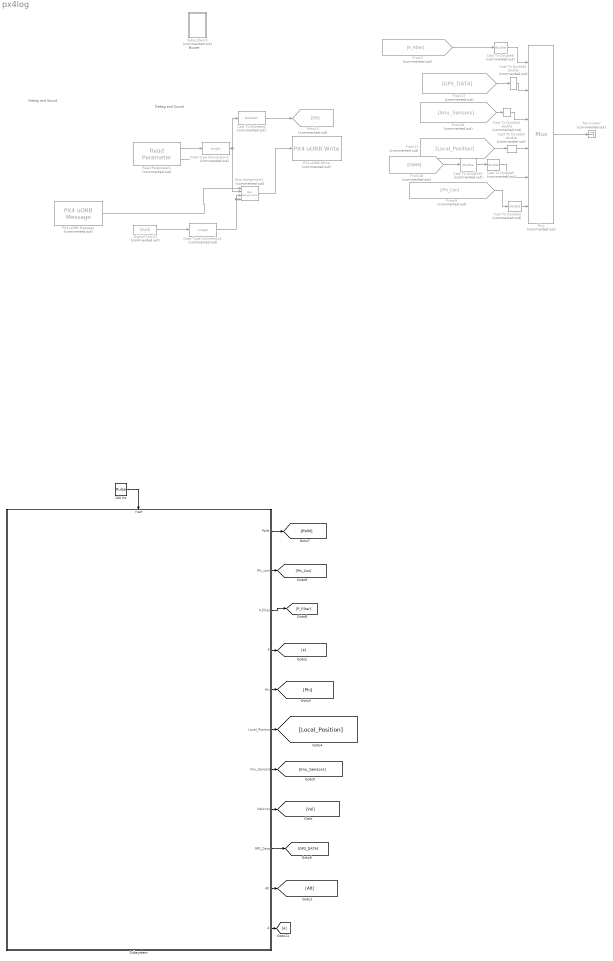
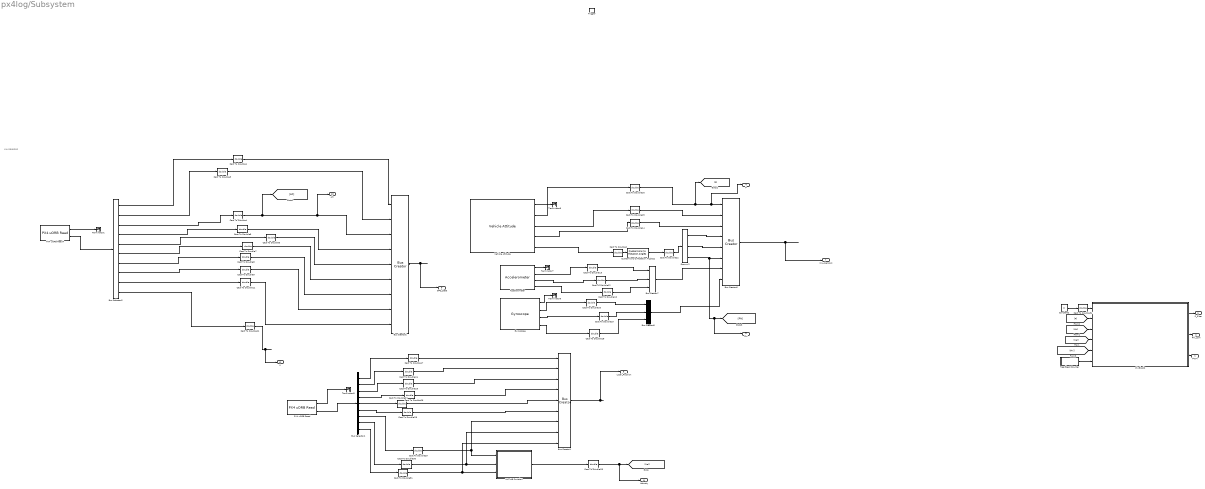
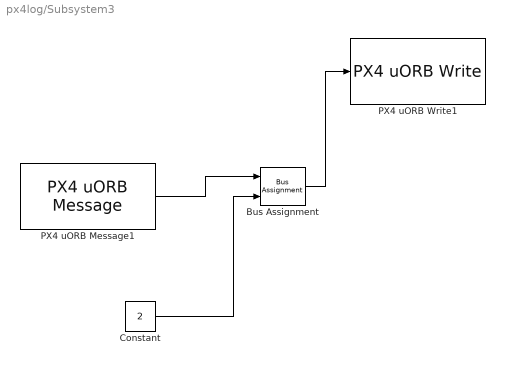
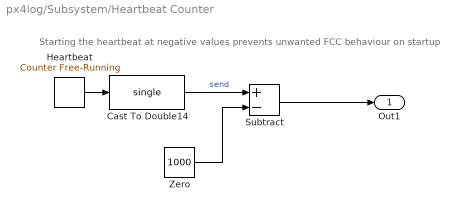
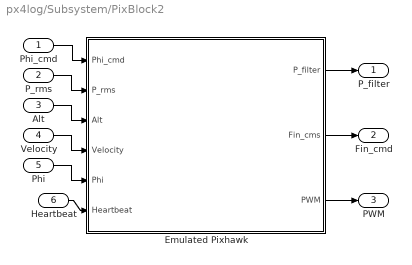
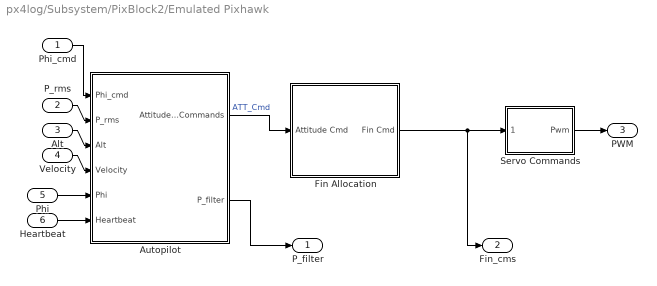
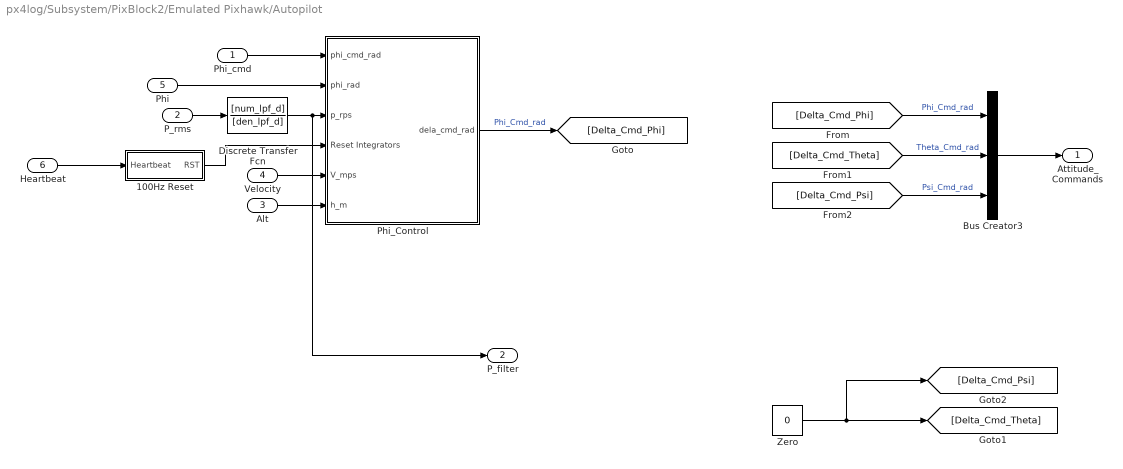
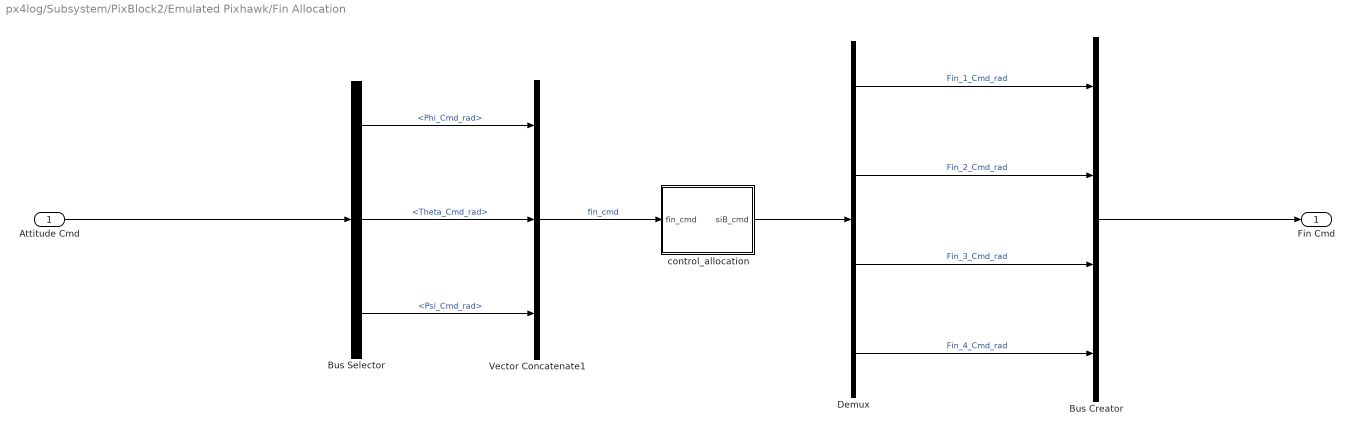
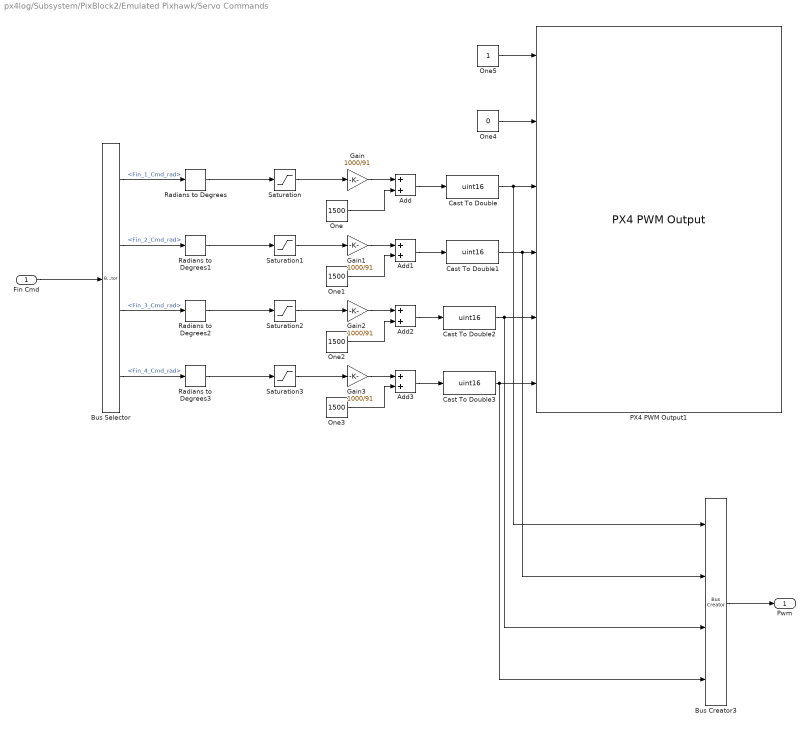
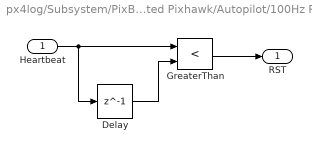
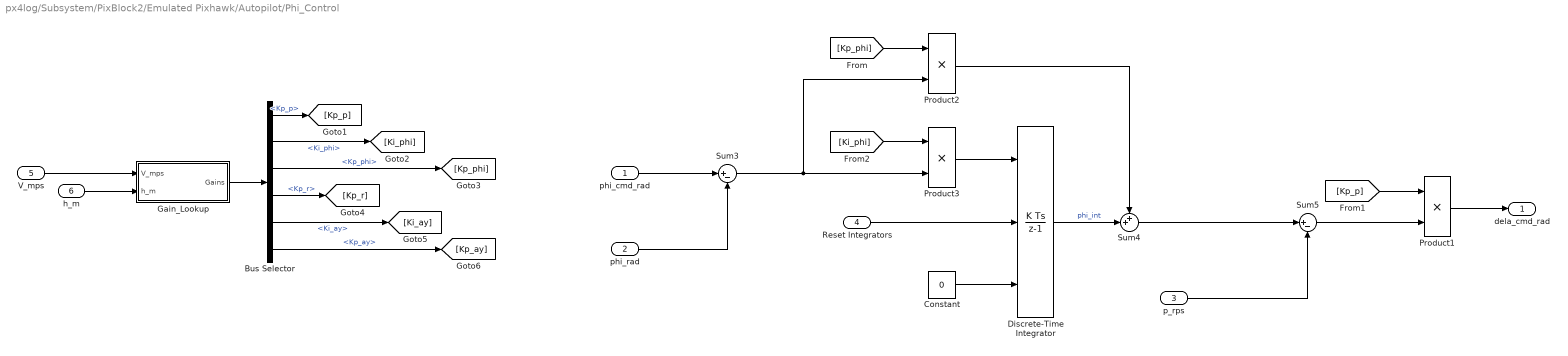
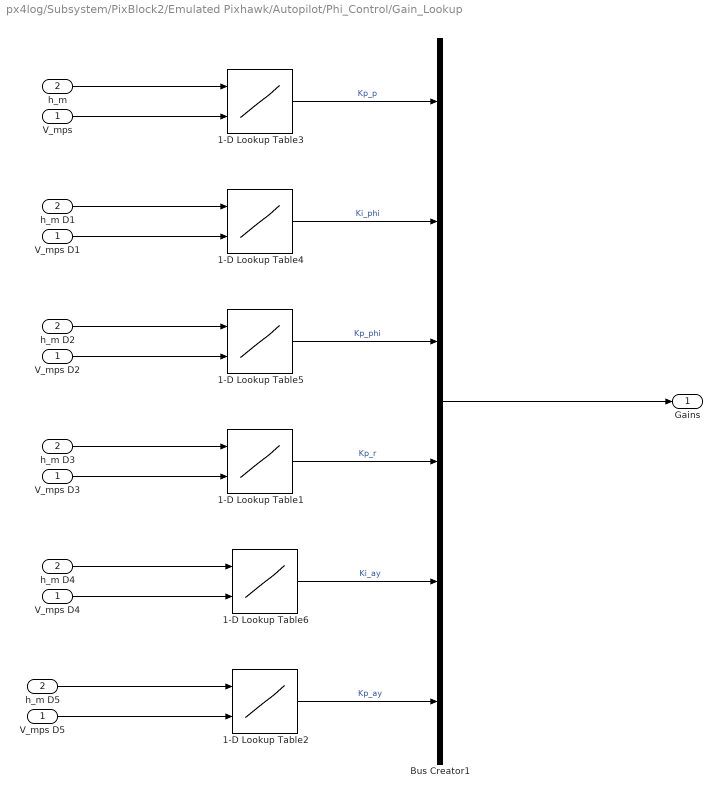
== system px4log/Subsystem/PixBlock2/Emulated Pixhawk/Fin Allocation/control_allocation ==
  fin_cmd : Inport
  Constant7 : Constant  Value=HIL_Data.FDM.Tr4r3  OutDataTypeStr=single
  Product : Product  Multiplication=Matrix(*)
  siB_cmd : Outport  VectorParamsAs1DForOutWhenUnconnected=off
  wires:
  Constant7/1 -> Product/1
  fin_cmd/1 -> Product/2
  Product/1 -> siB_cmd/1  "siB_cmd"

== matlab function px4log/Subsystem/MATLAB Function ==
function y = fcn(vx,vy,vz)

y = double(norm([vx vy vz]));
end

//
// Academic License - for use in teaching, academic research, and meeting
// course requirements at degree granting institutions only.  Not for
// government, commercial, or other organizational use.
//
// File: px4log.cpp
//
// Code generated for Simulink model 'px4log'.
//
// Model version                  : 1.155
// Simulink Coder version         : 9.5 (R2021a) 14-Nov-2020
// C/C++ source code generated on : Sat May  8 14:47:16 2021
//
// Target selection: ert.tlc
// Embedded hardware selection: ARM Compatible->ARM Cortex
// Code generation objectives: Unspecified
// Validation result: Not run
//
#include "px4log.h"
#include "px4log_private.h"

// Block signals (default storage)
B_px4log_T px4log_B;

// Block states (default storage)
DW_px4log_T px4log_DW;

// Previous zero-crossings (trigger) states
PrevZCX_px4log_T px4log_PrevZCX;

// Real-time model
RT_MODEL_px4log_T px4log_M_ = RT_MODEL_px4log_T();
RT_MODEL_px4log_T *const px4log_M = &px4log_M_;

// Forward declaration for local functions
static void px4log_SystemCore_setup(px4_internal_block_PWM_px4log_T *obj,
  boolean_T varargin_1, boolean_T varargin_2);
real_T look2_binlcapw(real_T u0, real_T u1, const real_T bp0[], const real_T
                      bp1[], const real_T table[], const uint32_T maxIndex[],
                      uint32_T stride)
{
  real_T fractions[2];
  real_T frac;
  real_T y;
  real_T yL_0d0;
  uint32_T bpIndices[2];
  uint32_T bpIdx;
  uint32_T iLeft;
  uint32_T iRght;

  // Column-major Lookup 2-D
  // Search method: 'binary'
  // Use previous index: 'off'
  // Interpolation method: 'Linear point-slope'
  // Extrapolation method: 'Clip'
  // Use last breakpoint for index at or above upper limit: 'on'
  // Remove protection against out-of-range input in generated code: 'off'

  // Prelookup - Index and Fraction
  // Index Search method: 'binary'
  // Extrapolation method: 'Clip'
  // Use previous index: 'off'
  // Use last breakpoint for index at or above upper limit: 'on'
  // Remove protection against out-of-range input in generated code: 'off'

  if (u0 <= bp0[0U]) {
    iLeft = 0U;
    frac = 0.0;
  } else if (u0 < bp0[maxIndex[0U]]) {
    // Binary Search
    bpIdx = maxIndex[0U] >> 1U;
    iLeft = 0U;
    iRght = maxIndex[0U];
    while (iRght - iLeft > 1U) {
      if (u0 < bp0[bpIdx]) {
        iRght = bpIdx;
      } else {
        iLeft = bpIdx;
      }

      bpIdx = (iRght + iLeft) >> 1U;
    }

    frac = (u0 - bp0[iLeft]) / (bp0[iLeft + 1U] - bp0[iLeft]);
  } else {
    iLeft = maxIndex[0U];
    frac = 0.0;
  }

  fractions[0U] = frac;
  bpIndices[0U] = iLeft;

  // Prelookup - Index and Fraction
  // Index Search method: 'binary'
  // Extrapolation method: 'Clip'
  // Use previous index: 'off'
  // Use last breakpoint for index at or above upper limit: 'on'
  // Remove protection against out-of-range input in generated code: 'off'

  if (u1 <= bp1[0U]) {
    iLeft = 0U;
    frac = 0.0;
  } else if (u1 < bp1[maxIndex[1U]]) {
    // Binary Search
    bpIdx = maxIndex[1U] >> 1U;
    iLeft = 0U;
    iRght = maxIndex[1U];
    while (iRght - iLeft > 1U) {
      if (u1 < bp1[bpIdx]) {
        iRght = bpIdx;
      } else {
        iLeft = bpIdx;
      }

      bpIdx = (iRght + iLeft) >> 1U;
    }

    frac = (u1 - bp1[iLeft]) / (bp1[iLeft + 1U] - bp1[iLeft]);
  } else {
    iLeft = maxIndex[1U];
    frac = 0.0;
  }

  // Column-major Interpolation 2-D
  // Interpolation method: 'Linear point-slope'
  // Use last breakpoint for index at or above upper limit: 'on'
  // Overflow mode: 'portable wrapping'

  bpIdx = iLeft * stride + bpIndices[0U];
  if (bpIndices[0U] == maxIndex[0U]) {
    y = table[bpIdx];
  } else {
    yL_0d0 = table[bpIdx];
    y = (table[bpIdx + 1U] - yL_0d0) * fractions[0U] + yL_0d0;
  }

  if (iLeft == maxIndex[1U]) {
  } else {
    bpIdx += stride;
    if (bpIndices[0U] == maxIndex[0U]) {
      yL_0d0 = table[bpIdx];
    } else {
      yL_0d0 = table[bpIdx];
      yL_0d0 += (table[bpIdx + 1U] - yL_0d0) * fractions[0U];
    }

    y += (yL_0d0 - y) * frac;
  }

  return y;
}

real_T rt_atan2d_snf(real_T u0, real_T u1)
{
  real_T y;
  int32_T u0_0;
  int32_T u1_0;
  if (rtIsNaN(u0) || rtIsNaN(u1)) {
    y = (rtNaN);
  } else if (rtIsInf(u0) && rtIsInf(u1)) {
    if (u0 > 0.0) {
      u0_0 = 1;
    } else {
      u0_0 = -1;
    }

    if (u1 > 0.0) {
      u1_0 = 1;
    } else {
      u1_0 = -1;
    }

    y = atan2(static_cast<real_T>(u0_0), static_cast<real_T>(u1_0));
  } else if (u1 == 0.0) {
    if (u0 > 0.0) {
      y = RT_PI / 2.0;
    } else if (u0 < 0.0) {
      y = -(RT_PI / 2.0);
    } else {
      y = 0.0;
    }
  } else {
    y = atan2(u0, u1);
  }

  return y;
}

static void px4log_SystemCore_setup(px4_internal_block_PWM_px4log_T *obj,
  boolean_T varargin_1, boolean_T varargin_2)
{
  uint16_T status;
  obj->isSetupComplete = false;
  obj->isInitialized = 1;
  obj->isMain = false;
  obj->pwmDevObj = MW_PWM_OUTPUT_AUX_DEVICE_PATH;
  status = pwm_open(&obj->pwmDevHandler, obj->pwmDevObj,
                    &obj->actuatorAdvertiseObj, &obj->armAdvertiseObj);
  obj->errorStatus = static_cast<uint16_T>(obj->errorStatus | status);
  obj->servoCount = 0;
  status = pwm_getServoCount(&obj->pwmDevHandler, &obj->servoCount);
  obj->errorStatus = static_cast<uint16_T>(obj->errorStatus | status);
  if (varargin_1) {
    status = pwm_arm(&obj->pwmDevHandler, &obj->armAdvertiseObj);
    obj->isArmed = true;
  } else {
    status = pwm_disarm(&obj->pwmDevHandler, &obj->armAdvertiseObj);
    obj->isArmed = false;
  }

  obj->errorStatus = static_cast<uint16_T>(obj->errorStatus | status);
  status = pwm_setPWMRate(&obj->pwmDevHandler, obj->isMain);
  obj->errorStatus = static_cast<uint16_T>(obj->errorStatus | status);
  obj->channelMask = 15;
  status = pwm_setChannelMask(&obj->pwmDevHandler, obj->channelMask);
  obj->errorStatus = static_cast<uint16_T>(obj->errorStatus | status);
  status = pwm_setFailsafePWM(&obj->pwmDevHandler, obj->servoCount,
    obj->channelMask, obj->isMain);
  obj->errorStatus = static_cast<uint16_T>(obj->errorStatus | status);
  status = pwm_setDisarmedPWM(&obj->pwmDevHandler, obj->servoCount,
    obj->channelMask, obj->isMain, &obj->actuatorAdvertiseObj);
  obj->errorStatus = static_cast<uint16_T>(obj->errorStatus | status);
  if (obj->isMain) {
    status = pwm_forceFailsafe(&obj->pwmDevHandler, static_cast<int32_T>
      (varargin_2));
    obj->errorStatus = static_cast<uint16_T>(obj->errorStatus | status);
    status = pwm_forceTerminateFailsafe(&obj->pwmDevHandler, 0);
    obj->errorStatus = static_cast<uint16_T>(obj->errorStatus | status);
  }

  obj->isSetupComplete = true;
}

// Model step function
void px4log_step(void)
{
  real_T rtb_Product1;
  real_T rtb_Product2_o;
  real_T rtb_u00Hz;
  real_T t;
  int32_T i;
  real32_T rtb_Subtract;
  uint32_T Subsystem_ELAPS_T;
  uint16_T status;
  boolean_T rtb_GreaterThan;
  ZCEventType zcEvent;

  // DiscretePulseGenerator: '<Root>/100 Hz'
  rtb_u00Hz = (px4log_DW.clockTickCounter < px4log_P.u00Hz_Duty) &&
    (px4log_DW.clockTickCounter >= 0) ? px4log_P.u00Hz_Amp : 0.0;
  if (px4log_DW.clockTickCounter >= px4log_P.u00Hz_Period - 1.0) {
    px4log_DW.clockTickCounter = 0;
  } else {
    px4log_DW.clockTickCounter++;
  }

  // End of DiscretePulseGenerator: '<Root>/100 Hz'

  // Outputs for Triggered SubSystem: '<Root>/Subsystem' incorporates:
  //   TriggerPort: '<S1>/Trigger'

  zcEvent = rt_ZCFcn(RISING_ZERO_CROSSING,&px4log_PrevZCX.Subsystem_Trig_ZCE,
                     (rtb_u00Hz));
  if (zcEvent != NO_ZCEVENT) {
    if (px4log_DW.Subsystem_RESET_ELAPS_T) {
      Subsystem_ELAPS_T = 0U;
    } else {
      Subsystem_ELAPS_T = px4log_M->Timing.clockTick0 -
        px4log_DW.Subsystem_PREV_T;
    }

    px4log_DW.Subsystem_PREV_T = px4log_M->Timing.clockTick0;
    px4log_DW.Subsystem_RESET_ELAPS_T = false;

    // MATLABSystem: '<S6>/SourceBlock' incorporates:
    //   Inport: '<S18>/In1'

    rtb_GreaterThan = uORB_read_step(px4log_DW.obj_f.orbMetadataObj,
      &px4log_DW.obj_f.eventStructObj, &px4log_B.b_varargout_2_m, false, 1.0);

    // Outputs for Enabled SubSystem: '<S6>/Enabled Subsystem' incorporates:
    //   EnablePort: '<S18>/Enable'

    if (rtb_GreaterThan) {
      px4log_B.In1_p = px4log_B.b_varargout_2_m;
    }

    // End of MATLABSystem: '<S6>/SourceBlock'
    // End of Outputs for SubSystem: '<S6>/Enabled Subsystem'

    // MATLAB Function: '<S1>/MATLAB Function' incorporates:
    //   DataTypeConversion: '<S1>/Cast To Double29'
    //   DataTypeConversion: '<S1>/Cast To Double30'
    //   DataTypeConversion: '<S1>/Cast To Double31'

    px4log_B.scale = 3.3121686421112381E-170;
    px4log_B.absxk = fabs(static_cast<real_T>(px4log_B.In1_p.vx));
    if (px4log_B.absxk > 3.3121686421112381E-170) {
      rtb_u00Hz = 1.0;
      px4log_B.scale = px4log_B.absxk;
    } else {
      t = px4log_B.absxk / 3.3121686421112381E-170;
      rtb_u00Hz = t * t;
    }

    px4log_B.absxk = fabs(static_cast<real_T>(px4log_B.In1_p.vy));
    if (px4log_B.absxk > px4log_B.scale) {
      t = px4log_B.scale / px4log_B.absxk;
      rtb_u00Hz = rtb_u00Hz * t * t + 1.0;
      px4log_B.scale = px4log_B.absxk;
    } else {
      t = px4log_B.absxk / px4log_B.scale;
      rtb_u00Hz += t * t;
    }

    px4log_B.absxk = fabs(static_cast<real_T>(px4log_B.In1_p.vz));
    if (px4log_B.absxk > px4log_B.scale) {
      t = px4log_B.scale / px4log_B.absxk;
      rtb_u00Hz = rtb_u00Hz * t * t + 1.0;
      px4log_B.scale = px4log_B.absxk;
    } else {
      t = px4log_B.absxk / px4log_B.scale;
      rtb_u00Hz += t * t;
    }

    rtb_u00Hz = px4log_B.scale * sqrt(rtb_u00Hz);

    // End of MATLAB Function: '<S1>/MATLAB Function'

    // MATLABSystem: '<S7>/SourceBlock' incorporates:
    //   Inport: '<S19>/In1'

    rtb_GreaterThan = uORB_read_step(px4log_DW.obj_g.orbMetadataObj,
      &px4log_DW.obj_g.eventStructObj, &px4log_B.b_varargout_2_c, false, 1.0);

    // Outputs for Enabled SubSystem: '<S7>/Enabled Subsystem' incorporates:
    //   EnablePort: '<S19>/Enable'

    if (rtb_GreaterThan) {
      px4log_B.In1_c = px4log_B.b_varargout_2_c;
    }

    // End of MATLABSystem: '<S7>/SourceBlock'
    // End of Outputs for SubSystem: '<S7>/Enabled Subsystem'

    // MATLABSystem: '<S40>/SourceBlock' incorporates:
    //   Inport: '<S41>/In1'

    rtb_GreaterThan = uORB_read_step(px4log_DW.obj.orbMetadataObj,
      &px4log_DW.obj.eventStructObj, &px4log_B.b_varargout_2, false, 1.0);

    // Outputs for Enabled SubSystem: '<S40>/Enabled Subsystem' incorporates:
    //   EnablePort: '<S41>/Enable'

    if (rtb_GreaterThan) {
      px4log_B.In1 = px4log_B.b_varargout_2;
    }

    // End of MATLABSystem: '<S40>/SourceBlock'
    // End of Outputs for SubSystem: '<S40>/Enabled Subsystem'

    // DiscreteTransferFcn: '<S21>/Discrete Transfer Fcn' incorporates:
    //   DataTypeConversion: '<S1>/Cast To Double16'

    px4log_B.scale = (px4log_B.In1.rollspeed -
                      px4log_P.DiscreteTransferFcn_DenCoef[1] *
                      px4log_DW.DiscreteTransferFcn_states) /
      px4log_P.DiscreteTransferFcn_DenCoef[0];

    // Sum: '<S4>/Subtract' incorporates:
    //   Constant: '<S4>/Zero'
    //   DataTypeConversion: '<S4>/Cast To Double14'
    //   UnitDelay: '<S15>/Output'

    rtb_Subtract = static_cast<real32_T>(px4log_DW.Output_DSTATE) -
      px4log_P.Zero_Value_g;

    // RelationalOperator: '<S24>/GreaterThan' incorporates:
    //   Delay: '<S24>/Delay'

    rtb_GreaterThan = (rtb_Subtract < px4log_DW.Delay_DSTATE);

    // DiscreteIntegrator: '<S25>/Discrete-Time Integrator' incorporates:
    //   Constant: '<S25>/Constant'

    if (px4log_DW.DiscreteTimeIntegrator_SYSTEM_E == 0) {
      if (rtb_GreaterThan || (px4log_DW.DiscreteTimeIntegrator_PrevRese != 0)) {
        px4log_DW.DiscreteTimeIntegrator_DSTATE = px4log_P.Constant_Value_o;
      } else {
        // DiscreteIntegrator: '<S25>/Discrete-Time Integrator'
        px4log_DW.DiscreteTimeIntegrator_DSTATE += static_cast<real32_T>
          (px4log_P.DiscreteTimeIntegrator_gainval * static_cast<real_T>
           (Subsystem_ELAPS_T) * px4log_DW.DiscreteTimeIntegrator_PREV_U);
      }
    }

    // End of DiscreteIntegrator: '<S25>/Discrete-Time Integrator'

    // Sqrt: '<S38>/sqrt' incorporates:
    //   DataTypeConversion: '<S1>/Cast To Double2'
    //   Product: '<S39>/Product'
    //   Product: '<S39>/Product1'
    //   Product: '<S39>/Product2'
    //   Product: '<S39>/Product3'
    //   Sum: '<S39>/Sum'

    px4log_B.absxk = sqrt(((static_cast<real_T>(px4log_B.In1.q[0]) *
      px4log_B.In1.q[0] + static_cast<real_T>(px4log_B.In1.q[1]) *
      px4log_B.In1.q[1]) + static_cast<real_T>(px4log_B.In1.q[2]) *
      px4log_B.In1.q[2]) + static_cast<real_T>(px4log_B.In1.q[3]) *
                          px4log_B.In1.q[3]);

    // Product: '<S33>/Product' incorporates:
    //   DataTypeConversion: '<S1>/Cast To Double2'

    t = px4log_B.In1.q[0] / px4log_B.absxk;

    // Product: '<S33>/Product1' incorporates:
    //   DataTypeConversion: '<S1>/Cast To Double2'

    rtb_Product1 = px4log_B.In1.q[1] / px4log_B.absxk;

    // Product: '<S33>/Product2' incorporates:
    //   DataTypeConversion: '<S1>/Cast To Double2'

    rtb_Product2_o = px4log_B.In1.q[2] / px4log_B.absxk;

    // Product: '<S33>/Product3' incorporates:
    //   DataTypeConversion: '<S1>/Cast To Double2'

    px4log_B.absxk = px4log_B.In1.q[3] / px4log_B.absxk;

    // Sum: '<S25>/Sum3' incorporates:
    //   Constant: '<S1>/Constant2'
    //   Fcn: '<S9>/fcn4'
    //   Fcn: '<S9>/fcn5'
    //   Trigonometry: '<S32>/Trigonometric Function3'

    px4log_B.absxk = px4log_P.Constant2_Value - rt_atan2d_snf((rtb_Product2_o *
      px4log_B.absxk + t * rtb_Product1) * 2.0, ((t * t - rtb_Product1 *
      rtb_Product1) - rtb_Product2_o * rtb_Product2_o) + px4log_B.absxk *
      px4log_B.absxk);

    // Product: '<S25>/Product1' incorporates:
    //   DataTypeConversion: '<S1>/Cast To Double33'
    //   DataTypeConversion: '<S1>/Cast To Double4'
    //   DiscreteTransferFcn: '<S21>/Discrete Transfer Fcn'
    //   Lookup_n-D: '<S26>/1-D Lookup Table3'
    //   Lookup_n-D: '<S26>/1-D Lookup Table5'
    //   Product: '<S25>/Product2'
    //   Sum: '<S25>/Sum4'
    //   Sum: '<S25>/Sum5'

    t = ((look2_binlcapw(static_cast<real_T>(px4log_B.In1_c.alt), rtb_u00Hz,
                         px4log_P.Autopilot.Phi.h_bkpts_m,
                         px4log_P.Autopilot.Phi.V_bkpts_mps,
                         px4log_P.Autopilot.Phi.Kp_phi_vec,
                         px4log_P.uDLookupTable5_maxIndex, 3U) * px4log_B.absxk
          + px4log_DW.DiscreteTimeIntegrator_DSTATE) -
         (px4log_P.DiscreteTransferFcn_NumCoef[0] * px4log_B.scale +
          px4log_P.DiscreteTransferFcn_NumCoef[1] *
          px4log_DW.DiscreteTransferFcn_states)) * look2_binlcapw
      (static_cast<real_T>(px4log_B.In1_c.alt), rtb_u00Hz,
       px4log_P.Autopilot.Phi.h_bkpts_m, px4log_P.Autopilot.Phi.V_bkpts_mps,
       px4log_P.Autopilot.Phi.Kp_p_vec, px4log_P.uDLookupTable3_maxIndex, 3U);

    // Product: '<S27>/Product' incorporates:
    //   Constant: '<S21>/Zero'
    //   Constant: '<S27>/Constant7'

    for (i = 0; i < 4; i++) {
      px4log_B.CastToDouble2[i] = px4log_P.Constant7_Value[i + 8] *
        px4log_P.Zero_Value + (px4log_P.Constant7_Value[i + 4] *
        px4log_P.Zero_Value + px4log_P.Constant7_Value[i] * t);
    }

    // End of Product: '<S27>/Product'

    // MATLABSystem: '<S23>/PX4 PWM Output1'
    for (i = 0; i < 8; i++) {
      px4log_B.pwmValue[i] = 0U;
    }

    // Gain: '<S28>/Gain'
    t = px4log_P.Gain_Gain * px4log_B.CastToDouble2[0];

    // Saturate: '<S23>/Saturation'
    if (t > px4log_P.Saturation_UpperSat) {
      t = px4log_P.Saturation_UpperSat;
    } else if (t < px4log_P.Saturation_LowerSat) {
      t = px4log_P.Saturation_LowerSat;
    }

    // End of Saturate: '<S23>/Saturation'

    // DataTypeConversion: '<S23>/Cast To Double' incorporates:
    //   Constant: '<S23>/One'
    //   Gain: '<S23>/Gain'
    //   Sum: '<S23>/Add'

    t = floor(px4log_P.Gain_Gain_c * t + px4log_P.One_Value);
    if (rtIsNaN(t) || rtIsInf(t)) {
      t = 0.0;
    } else {
      t = fmod(t, 65536.0);
    }

    // MATLABSystem: '<S23>/PX4 PWM Output1' incorporates:
    //   DataTypeConversion: '<S23>/Cast To Double'

    px4log_B.pwmValue[0] = static_cast<uint16_T>(t < 0.0 ? static_cast<int32_T>(
      static_cast<uint16_T>(-static_cast<int16_T>(static_cast<uint16_T>(-t)))) :
      static_cast<int32_T>(static_cast<uint16_T>(t)));

    // Gain: '<S29>/Gain'
    t = px4log_P.Gain_Gain_l * px4log_B.CastToDouble2[1];

    // Saturate: '<S23>/Saturation1'
    if (t > px4log_P.Saturation1_UpperSat) {
      t = px4log_P.Saturation1_UpperSat;
    } else if (t < px4log_P.Saturation1_LowerSat) {
      t = px4log_P.Saturation1_LowerSat;
    }

    // End of Saturate: '<S23>/Saturation1'

    // DataTypeConversion: '<S23>/Cast To Double1' incorporates:
    //   Constant: '<S23>/One1'
    //   Gain: '<S23>/Gain1'
    //   Sum: '<S23>/Add1'

    t = floor(px4log_P.Gain1_Gain * t + px4log_P.One1_Value);
    if (rtIsNaN(t) || rtIsInf(t)) {
      t = 0.0;
    } else {
      t = fmod(t, 65536.0);
    }

    // MATLABSystem: '<S23>/PX4 PWM Output1' incorporates:
    //   DataTypeConversion: '<S23>/Cast To Double1'

    px4log_B.pwmValue[1] = static_cast<uint16_T>(t < 0.0 ? static_cast<int32_T>(
      static_cast<uint16_T>(-static_cast<int16_T>(static_cast<uint16_T>(-t)))) :
      static_cast<int32_T>(static_cast<uint16_T>(t)));

    // Gain: '<S30>/Gain'
    t = px4log_P.Gain_Gain_m * px4log_B.CastToDouble2[2];

    // Saturate: '<S23>/Saturation2'
    if (t > px4log_P.Saturation2_UpperSat) {
      t = px4log_P.Saturation2_UpperSat;
    } else if (t < px4log_P.Saturation2_LowerSat) {
      t = px4log_P.Saturation2_LowerSat;
    }

    // End of Saturate: '<S23>/Saturation2'

    // DataTypeConversion: '<S23>/Cast To Double2' incorporates:
    //   Constant: '<S23>/One2'
    //   Gain: '<S23>/Gain2'
    //   Sum: '<S23>/Add2'

    t = floor(px4log_P.Gain2_Gain * t + px4log_P.One2_Value);
    if (rtIsNaN(t) || rtIsInf(t)) {
      t = 0.0;
    } else {
      t = fmod(t, 65536.0);
    }

    // MATLABSystem: '<S23>/PX4 PWM Output1' incorporates:
    //   DataTypeConversion: '<S23>/Cast To Double2'

    px4log_B.pwmValue[2] = static_cast<uint16_T>(t < 0.0 ? static_cast<int32_T>(
      static_cast<uint16_T>(-static_cast<int16_T>(static_cast<uint16_T>(-t)))) :
      static_cast<int32_T>(static_cast<uint16_T>(t)));

    // Gain: '<S31>/Gain'
    t = px4log_P.Gain_Gain_mt * px4log_B.CastToDouble2[3];

    // Saturate: '<S23>/Saturation3'
    if (t > px4log_P.Saturation3_UpperSat) {
      t = px4log_P.Saturation3_UpperSat;
    } else if (t < px4log_P.Saturation3_LowerSat) {
      t = px4log_P.Saturation3_LowerSat;
    }

    // End of Saturate: '<S23>/Saturation3'

    // DataTypeConversion: '<S23>/Cast To Double3' incorporates:
    //   Constant: '<S23>/One3'
    //   Gain: '<S23>/Gain3'
    //   Sum: '<S23>/Add3'

    t = floor(px4log_P.Gain3_Gain * t + px4log_P.One3_Value);
    if (rtIsNaN(t) || rtIsInf(t)) {
      t = 0.0;
    } else {
      t = fmod(t, 65536.0);
    }

    // MATLABSystem: '<S23>/PX4 PWM Output1' incorporates:
    //   Constant: '<S23>/One4'
    //   Constant: '<S23>/One5'
    //   DataTypeConversion: '<S23>/Cast To Double3'

    px4log_B.pwmValue[3] = static_cast<uint16_T>(t < 0.0 ? static_cast<int32_T>(
      static_cast<uint16_T>(-static_cast<int16_T>(static_cast<uint16_T>(-t)))) :
      static_cast<int32_T>(static_cast<uint16_T>(t)));
    if (px4log_P.One5_Value) {
      if (!px4log_DW.obj_p.isArmed) {
        px4log_DW.obj_p.isArmed = true;
        status = pwm_arm(&px4log_DW.obj_p.pwmDevHandler,
                         &px4log_DW.obj_p.armAdvertiseObj);
        px4log_DW.obj_p.errorStatus = static_cast<uint16_T>
          (px4log_DW.obj_p.errorStatus | status);
      }

      status = pwm_setServo(&px4log_DW.obj_p.pwmDevHandler,
                            px4log_DW.obj_p.servoCount,
                            px4log_DW.obj_p.channelMask, &px4log_B.pwmValue[0],
                            px4log_DW.obj_p.isMain,
                            &px4log_DW.obj_p.actuatorAdvertiseObj);
      px4log_DW.obj_p.errorStatus = static_cast<uint16_T>
        (px4log_DW.obj_p.errorStatus | status);
    } else {
      status = pwm_disarm(&px4log_DW.obj_p.pwmDevHandler,
                          &px4log_DW.obj_p.armAdvertiseObj);
      px4log_DW.obj_p.errorStatus = static_cast<uint16_T>
        (px4log_DW.obj_p.errorStatus | status);
      px4log_DW.obj_p.isArmed = false;
      status = pwm_resetServo(&px4log_DW.obj_p.pwmDevHandler,
        px4log_DW.obj_p.servoCount, px4log_DW.obj_p.channelMask,
        px4log_DW.obj_p.isMain, &px4log_DW.obj_p.actuatorAdvertiseObj);
      px4log_DW.obj_p.errorStatus = static_cast<uint16_T>
        (px4log_DW.obj_p.errorStatus | status);
    }

    if (px4log_DW.obj_p.isMain) {
      status = pwm_forceFailsafe(&px4log_DW.obj_p.pwmDevHandler,
        static_cast<int32_T>(px4log_P.One4_Value));
      px4log_DW.obj_p.errorStatus = static_cast<uint16_T>
        (px4log_DW.obj_p.errorStatus | status);
    }

    // Sum: '<S16>/FixPt Sum1' incorporates:
    //   Constant: '<S16>/FixPt Constant'
    //   UnitDelay: '<S15>/Output'

    px4log_DW.Output_DSTATE = static_cast<uint16_T>(static_cast<uint32_T>
      (px4log_DW.Output_DSTATE) + px4log_P.FixPtConstant_Value);

    // Switch: '<S17>/FixPt Switch'
    if (px4log_DW.Output_DSTATE > px4log_P.WrapToZero_Threshold) {
      // Sum: '<S16>/FixPt Sum1' incorporates:
      //   Constant: '<S17>/Constant'

      px4log_DW.Output_DSTATE = px4log_P.Constant_Value_ai;
    }

    // End of Switch: '<S17>/FixPt Switch'

    // MATLABSystem: '<S11>/SourceBlock'
    uORB_read_step(px4log_DW.obj_m.orbMetadataObj,
                   &px4log_DW.obj_m.eventStructObj, &px4log_B.b_varargout_2_k,
                   false, 1.0);

    // MATLABSystem: '<S13>/SourceBlock'
    uORB_read_step(px4log_DW.obj_n.orbMetadataObj,
                   &px4log_DW.obj_n.eventStructObj, &px4log_B.b_varargout_2_cx,
                   false, 1.0);

    // Update for DiscreteTransferFcn: '<S21>/Discrete Transfer Fcn'
    px4log_DW.DiscreteTransferFcn_states = px4log_B.scale;

    // Update for Delay: '<S24>/Delay'
    px4log_DW.Delay_DSTATE = rtb_Subtract;

    // Update for DiscreteIntegrator: '<S25>/Discrete-Time Integrator' incorporates:
    //   DataTypeConversion: '<S1>/Cast To Double33'
    //   DataTypeConversion: '<S1>/Cast To Double4'
    //   Lookup_n-D: '<S26>/1-D Lookup Table4'
    //   Product: '<S25>/Product3'

    px4log_DW.DiscreteTimeIntegrator_SYSTEM_E = 0U;
    px4log_DW.DiscreteTimeIntegrator_PrevRese = static_cast<int8_T>
      (rtb_GreaterThan);
    px4log_DW.DiscreteTimeIntegrator_PREV_U = look2_binlcapw(static_cast<real_T>
      (px4log_B.In1_c.alt), rtb_u00Hz, px4log_P.Autopilot.Phi.h_bkpts_m,
      px4log_P.Autopilot.Phi.V_bkpts_mps, px4log_P.Autopilot.Phi.Ki_phi_vec,
      px4log_P.uDLookupTable4_maxIndex, 3U) * px4log_B.absxk;
  }

  // End of Outputs for SubSystem: '<Root>/Subsystem'

  // Matfile logging
  rt_UpdateTXYLogVars(px4log_M->rtwLogInfo, (&px4log_M->Timing.taskTime0));

  // signal main to stop simulation
  {                                    // Sample time: [0.005s, 0.0s]
    if ((rtmGetTFinal(px4log_M)!=-1) &&
        !((rtmGetTFinal(px4log_M)-px4log_M->Timing.taskTime0) >
          px4log_M->Timing.taskTime0 * (DBL_EPSILON))) {
      rtmSetErrorStatus(px4log_M, "Simulation finished");
    }
  }

  // Update absolute time for base rate
  // The "clockTick0" counts the number of times the code of this task has
  //  been executed. The absolute time is the multiplication of "clockTick0"
  //  and "Timing.stepSize0". Size of "clockTick0" ensures timer will not
  //  overflow during the application lifespan selected.

  px4log_M->Timing.taskTime0 =
    ((time_T)(++px4log_M->Timing.clockTick0)) * px4log_M->Timing.stepSize0;
}
